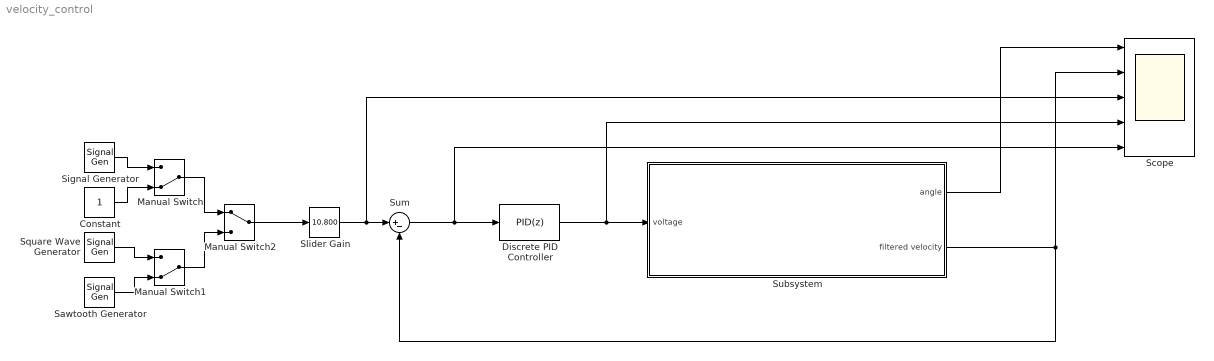
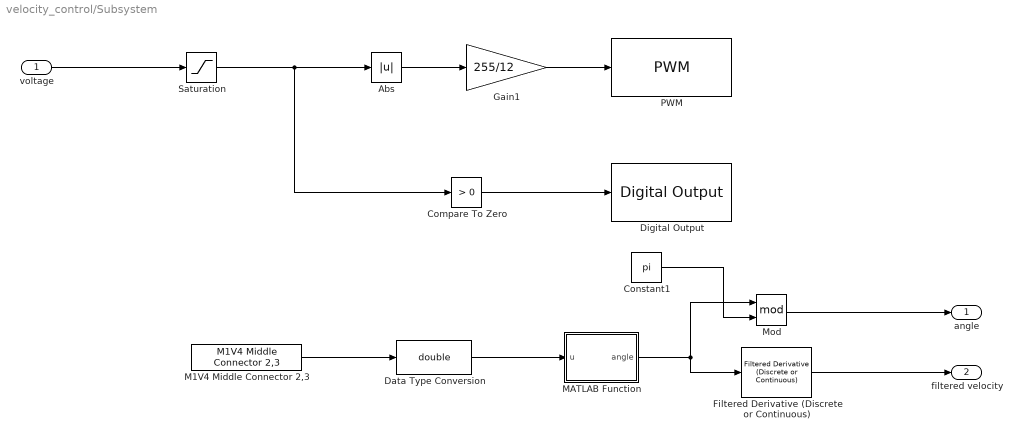
== matlab function velocity_control/Subsystem/MATLAB Function ==
function angle = count2angle(u)

N = 500; Q = 4; G = 6.3;
factor = 2 * pi / (N*Q*G);
angle = u * factor;

/*
 * Academic License - for use in teaching, academic research, and meeting
 * course requirements at degree granting institutions only.  Not for
 * government, commercial, or other organizational use.
 *
 * File: velocity_control.c
 *
 * Code generated for Simulink model 'velocity_control'.
 *
 * Model version                  : 1.7
 * Simulink Coder version         : 9.9 (R2023a) 19-Nov-2022
 * C/C++ source code generated on : Fri Jul 17 13:08:40 2026
 *
 * Target selection: ert.tlc
 * Embedded hardware selection: Atmel->AVR
 * Code generation objectives: Unspecified
 * Validation result: Not run
 */

#include "velocity_control.h"
#include "rtwtypes.h"
#include "rt_nonfinite.h"
#include "velocity_control_private.h"
#include <math.h>
#include "velocity_control_types.h"
#include <float.h>

/* Block signals (default storage) */
B_velocity_control_T velocity_control_B;

/* Block states (default storage) */
DW_velocity_control_T velocity_control_DW;

/* Real-time model */
static RT_MODEL_velocity_control_T velocity_control_M_;
RT_MODEL_velocity_control_T *const velocity_control_M = &velocity_control_M_;
real_T rt_modd_snf(real_T u0, real_T u1)
{
  real_T q;
  real_T y;
  boolean_T yEq;
  y = u0;
  if (u1 == 0.0) {
    if (u0 == 0.0) {
      y = u1;
    }
  } else if (rtIsNaN(u0) || rtIsNaN(u1) || rtIsInf(u0)) {
    y = (rtNaN);
  } else if (u0 == 0.0) {
    y = 0.0 / u1;
  } else if (rtIsInf(u1)) {
    if ((u1 < 0.0) != (u0 < 0.0)) {
      y = u1;
    }
  } else {
    y = fmod(u0, u1);
    yEq = (y == 0.0);
    if ((!yEq) && (u1 > floor(u1))) {
      q = fabs(u0 / u1);
      yEq = !(fabs(q - floor(q + 0.5)) > DBL_EPSILON * q);
    }

    if (yEq) {
      y = u1 * 0.0;
    } else if ((u0 < 0.0) != (u1 < 0.0)) {
      y += u1;
    }
  }

  return y;
}

/* Model step function */
void velocity_control_step(void)
{
  /* local block i/o variables */
  real_T rtb_FilterCoefficient;
  real_T rtb_IntegralGain;
  codertarget_arduinobase_inter_T *obj;
  real_T angle;
  real_T rtb_Integrator_c;
  real_T temp;
  int32_T rtb_M1V4MiddleConnector23_0;

  /* Gain: '<S55>/Minimum sampling to time constant ratio' */
  rtb_Integrator_c = velocity_control_P.FilteredDerivativeDiscreteorC_m *
    velocity_control_B.Probe[0];

  /* MinMax: '<S55>/MinMax' incorporates:
   *  Constant: '<S55>/Time constant'
   */
  if ((!(rtb_Integrator_c >= velocity_control_P.FilteredDerivativeDiscreteorC_a))
      && (!rtIsNaN(velocity_control_P.FilteredDerivativeDiscreteorC_a))) {
    rtb_Integrator_c = velocity_control_P.FilteredDerivativeDiscreteorC_a;
  }

  /* End of MinMax: '<S55>/MinMax' */

  /* MATLABSystem: '<S3>/M1V4 Middle Connector 2,3' */
  /*         %% Define output properties */
  /*  Call: int enc_output(int enc) */
  rtb_M1V4MiddleConnector23_0 = enc_output(0.0);

  /* MATLAB Function: '<S3>/MATLAB Function' incorporates:
   *  DataTypeConversion: '<S3>/Data Type Conversion'
   *  MATLABSystem: '<S3>/M1V4 Middle Connector 2,3'
   */
  angle = (real_T)rtb_M1V4MiddleConnector23_0 * 0.00049866550056980839;

  /* DiscreteIntegrator: '<S59>/Integrator' incorporates:
   *  Constant: '<S53>/Constant'
   */
  if (velocity_control_DW.Integrator_IC_LOADING != 0) {
    velocity_control_DW.Integrator_DSTATE = angle;
    if (velocity_control_DW.Integrator_DSTATE >=
        velocity_control_P.Integrator_UpperSat) {
      velocity_control_DW.Integrator_DSTATE =
        velocity_control_P.Integrator_UpperSat;
    } else if (velocity_control_DW.Integrator_DSTATE <=
               velocity_control_P.Integrator_LowerSat) {
      velocity_control_DW.Integrator_DSTATE =
        velocity_control_P.Integrator_LowerSat;
    }
  }

  if ((velocity_control_P.Constant_Value_h != 0.0) ||
      (velocity_control_DW.Integrator_PrevResetState != 0)) {
    velocity_control_DW.Integrator_DSTATE = angle;
    if (velocity_control_DW.Integrator_DSTATE >=
        velocity_control_P.Integrator_UpperSat) {
      velocity_control_DW.Integrator_DSTATE =
        velocity_control_P.Integrator_UpperSat;
    } else if (velocity_control_DW.Integrator_DSTATE <=
               velocity_control_P.Integrator_LowerSat) {
      velocity_control_DW.Integrator_DSTATE =
        velocity_control_P.Integrator_LowerSat;
    }
  }

  if (velocity_control_DW.Integrator_DSTATE >=
      velocity_control_P.Integrator_UpperSat) {
    velocity_control_DW.Integrator_DSTATE =
      velocity_control_P.Integrator_UpperSat;
  } else if (velocity_control_DW.Integrator_DSTATE <=
             velocity_control_P.Integrator_LowerSat) {
    velocity_control_DW.Integrator_DSTATE =
      velocity_control_P.Integrator_LowerSat;
  }

  /* Saturate: '<S59>/Saturation' incorporates:
   *  DiscreteIntegrator: '<S59>/Integrator'
   */
  if (velocity_control_DW.Integrator_DSTATE >
      velocity_control_P.Saturation_UpperSat) {
    temp = velocity_control_P.Saturation_UpperSat;
  } else if (velocity_control_DW.Integrator_DSTATE <
             velocity_control_P.Saturation_LowerSat) {
    temp = velocity_control_P.Saturation_LowerSat;
  } else {
    temp = velocity_control_DW.Integrator_DSTATE;
  }

  /* Product: '<S53>/1//T' incorporates:
   *  Fcn: '<S55>/Avoid Divide by Zero'
   *  Saturate: '<S59>/Saturation'
   *  Sum: '<S53>/Sum1'
   */
  velocity_control_B.uT = 1.0 / ((real_T)(rtb_Integrator_c == 0.0) *
    2.2204460492503131e-16 + rtb_Integrator_c) * (angle - temp);

  /* Gain: '<S53>/Gain' */
  velocity_control_B.AB = velocity_control_P.FilteredDerivativeDiscreteorC_i *
    velocity_control_B.uT;

  /* Saturate: '<S53>/[A,B]' */
  if (velocity_control_B.AB > velocity_control_P.FilteredDerivativeDiscreteorC_p)
  {
    /* Gain: '<S53>/Gain' incorporates:
     *  Saturate: '<S53>/[A,B]'
     */
    velocity_control_B.AB = velocity_control_P.FilteredDerivativeDiscreteorC_p;
  } else if (velocity_control_B.AB <
             velocity_control_P.FilteredDerivativeDiscreteorCon) {
    /* Gain: '<S53>/Gain' incorporates:
     *  Saturate: '<S53>/[A,B]'
     */
    velocity_control_B.AB = velocity_control_P.FilteredDerivativeDiscreteorCon;
  }

  /* End of Saturate: '<S53>/[A,B]' */
  /* Math: '<S3>/Mod' incorporates:
   *  Constant: '<S3>/Constant1'
   */
  velocity_control_B.Mod = rt_modd_snf(angle, velocity_control_P.Constant1_Value);

  /* SignalGenerator: '<Root>/Square Wave Generator' incorporates:
   *  SignalGenerator: '<Root>/Signal Generator'
   */
  angle = velocity_control_M->Timing.t[0];
  rtb_Integrator_c = velocity_control_P.SquareWaveGenerator_Frequency * angle;

  /* SignalGenerator: '<Root>/Sawtooth Generator' incorporates:
   *  SignalGenerator: '<Root>/Square Wave Generator'
   */
  temp = velocity_control_P.SawtoothGenerator_Frequency * angle;

  /* ManualSwitch: '<Root>/Manual Switch2' incorporates:
   *  ManualSwitch: '<Root>/Manual Switch1'
   *  SignalGenerator: '<Root>/Sawtooth Generator'
   */
  if (velocity_control_P.ManualSwitch2_CurrentSetting == 1) {
    /* ManualSwitch: '<Root>/Manual Switch' incorporates:
     *  Constant: '<Root>/Constant'
     *  SignalGenerator: '<Root>/Signal Generator'
     */
    if (velocity_control_P.ManualSwitch_CurrentSetting == 1) {
      angle = sin(velocity_control_P.SignalGenerator_Frequency * angle) *
        velocity_control_P.SignalGenerator_Amplitude;
    } else {
      angle = velocity_control_P.Constant_Value_c;
    }

    /* End of ManualSwitch: '<Root>/Manual Switch' */
  } else if (velocity_control_P.ManualSwitch1_CurrentSetting == 1) {
    /* SignalGenerator: '<Root>/Square Wave Generator' */
    if (rtb_Integrator_c - floor(rtb_Integrator_c) >= 0.5) {
      /* ManualSwitch: '<Root>/Manual Switch1' incorporates:
       *  SignalGenerator: '<Root>/Square Wave Generator'
       */
      angle = velocity_control_P.SquareWaveGenerator_Amplitude;
    } else {
      /* ManualSwitch: '<Root>/Manual Switch1' incorporates:
       *  SignalGenerator: '<Root>/Square Wave Generator'
       */
      angle = -velocity_control_P.SquareWaveGenerator_Amplitude;
    }
  } else {
    angle = (1.0 - (temp - floor(temp)) * 2.0) *
      velocity_control_P.SawtoothGenerator_Amplitude;
  }

  /* End of ManualSwitch: '<Root>/Manual Switch2' */

  /* Gain: '<S2>/Slider Gain' */
  velocity_control_B.SliderGain = velocity_control_P.SliderGain_gain * angle;

  /* Sum: '<Root>/Sum' */
  velocity_control_B.Sum = velocity_control_B.SliderGain - velocity_control_B.AB;

  /* Gain: '<S38>/Filter Coefficient' incorporates:
   *  DiscreteIntegrator: '<S30>/Filter'
   *  Gain: '<S29>/Derivative Gain'
   *  Sum: '<S30>/SumD'
   */
  rtb_FilterCoefficient = (velocity_control_P.DiscretePIDController_D *
    velocity_control_B.Sum - velocity_control_DW.Filter_DSTATE) *
    velocity_control_P.DiscretePIDController_N;

  /* Sum: '<S44>/Sum' incorporates:
   *  DiscreteIntegrator: '<S35>/Integrator'
   *  Gain: '<S40>/Proportional Gain'
   */
  velocity_control_B.Saturation_n = (velocity_control_P.DiscretePIDController_P *
    velocity_control_B.Sum + velocity_control_DW.Integrator_DSTATE_c) +
    rtb_FilterCoefficient;

  /* Saturate: '<S42>/Saturation' */
  if (velocity_control_B.Saturation_n >
      velocity_control_P.DiscretePIDController_UpperSatu) {
    /* Sum: '<S44>/Sum' incorporates:
     *  Saturate: '<S42>/Saturation'
     */
    velocity_control_B.Saturation_n =
      velocity_control_P.DiscretePIDController_UpperSatu;
  } else if (velocity_control_B.Saturation_n <
             velocity_control_P.DiscretePIDController_LowerSatu) {
    /* Sum: '<S44>/Sum' incorporates:
     *  Saturate: '<S42>/Saturation'
     */
    velocity_control_B.Saturation_n =
      velocity_control_P.DiscretePIDController_LowerSatu;
  }

  /* End of Saturate: '<S42>/Saturation' */
  /* Saturate: '<S3>/Saturation' */
  if (velocity_control_B.Saturation_n > velocity_control_P.Saturation_UpperSat_j)
  {
    angle = velocity_control_P.Saturation_UpperSat_j;
  } else if (velocity_control_B.Saturation_n <
             velocity_control_P.Saturation_LowerSat_h) {
    angle = velocity_control_P.Saturation_LowerSat_h;
  } else {
    angle = velocity_control_B.Saturation_n;
  }

  /* End of Saturate: '<S3>/Saturation' */

  /* MATLABSystem: '<S3>/Digital Output' incorporates:
   *  Constant: '<S52>/Constant'
   *  RelationalOperator: '<S52>/Compare'
   */
  writeDigitalPin(8, (uint8_T)(angle > velocity_control_P.Constant_Value));

  /* MATLABSystem: '<S3>/PWM' */
  obj = &velocity_control_DW.obj_l;
  obj->PWMDriverObj.MW_PWM_HANDLE = MW_PWM_GetHandle(9UL);

  /* Gain: '<S3>/Gain1' incorporates:
   *  Abs: '<S3>/Abs'
   */
  angle = velocity_control_P.Gain1_Gain * fabs(angle);

  /* MATLABSystem: '<S3>/PWM' */
  if (!(angle <= 255.0)) {
    angle = 255.0;
  }

  if (!(angle >= 0.0)) {
    angle = 0.0;
  }

  MW_PWM_SetDutyCycle(velocity_control_DW.obj_l.PWMDriverObj.MW_PWM_HANDLE,
                      angle);

  /* Gain: '<S32>/Integral Gain' */
  rtb_IntegralGain = velocity_control_P.DiscretePIDController_I *
    velocity_control_B.Sum;

  /* Update for DiscreteIntegrator: '<S59>/Integrator' incorporates:
   *  Constant: '<S53>/Constant'
   */
  velocity_control_DW.Integrator_IC_LOADING = 0U;
  velocity_control_DW.Integrator_DSTATE += velocity_control_P.Integrator_gainval
    * velocity_control_B.uT;
  if (velocity_control_DW.Integrator_DSTATE >=
      velocity_control_P.Integrator_UpperSat) {
    velocity_control_DW.Integrator_DSTATE =
      velocity_control_P.Integrator_UpperSat;
  } else if (velocity_control_DW.Integrator_DSTATE <=
             velocity_control_P.Integrator_LowerSat) {
    velocity_control_DW.Integrator_DSTATE =
      velocity_control_P.Integrator_LowerSat;
  }

  if (velocity_control_P.Constant_Value_h > 0.0) {
    velocity_control_DW.Integrator_PrevResetState = 1;
  } else if (velocity_control_P.Constant_Value_h < 0.0) {
    velocity_control_DW.Integrator_PrevResetState = -1;
  } else if (velocity_control_P.Constant_Value_h == 0.0) {
    velocity_control_DW.Integrator_PrevResetState = 0;
  } else {
    velocity_control_DW.Integrator_PrevResetState = 2;
  }

  /* End of Update for DiscreteIntegrator: '<S59>/Integrator' */

  /* Update for DiscreteIntegrator: '<S35>/Integrator' */
  velocity_control_DW.Integrator_DSTATE_c +=
    velocity_control_P.Integrator_gainval_l * rtb_IntegralGain;

  /* Update for DiscreteIntegrator: '<S30>/Filter' */
  velocity_control_DW.Filter_DSTATE += velocity_control_P.Filter_gainval *
    rtb_FilterCoefficient;

  {                                    /* Sample time: [0.0s, 0.0s] */
    extmodeErrorCode_T errorCode = EXTMODE_SUCCESS;
    extmodeSimulationTime_T currentTime = (extmodeSimulationTime_T)
      ((velocity_control_M->Timing.clockTick0 * 1) + 0)
      ;

    /* Trigger External Mode event */
    errorCode = extmodeEvent(0,currentTime);
    if (errorCode != EXTMODE_SUCCESS) {
      /* Code to handle External Mode event errors
         may be added here */
    }
  }

  {                                    /* Sample time: [0.01s, 0.0s] */
    extmodeErrorCode_T errorCode = EXTMODE_SUCCESS;
    extmodeSimulationTime_T currentTime = (extmodeSimulationTime_T)
      ((velocity_control_M->Timing.clockTick1 * 1) + 0)
      ;

    /* Trigger External Mode event */
    errorCode = extmodeEvent(1,currentTime);
    if (errorCode != EXTMODE_SUCCESS) {
      /* Code to handle External Mode event errors
         may be added here */
    }
  }

  /* Update absolute time for base rate */
  /* The "clockTick0" counts the number of times the code of this task has
   * been executed. The absolute time is the multiplication of "clockTick0"
   * and "Timing.stepSize0". Size of "clockTick0" ensures timer will not
   * overflow during the application lifespan selected.
   */
  velocity_control_M->Timing.t[0] =
    ((time_T)(++velocity_control_M->Timing.clockTick0)) *
    velocity_control_M->Timing.stepSize0;

  {
    /* Update absolute timer for sample time: [0.01s, 0.0s] */
    /* The "clockTick1" counts the number of times the code of this task has
     * been executed. The resolution of this integer timer is 0.01, which is the step size
     * of the task. Size of "clockTick1" ensures timer will not overflow during the
     * application lifespan selected.
     */
    velocity_control_M->Timing.clockTick1++;
  }
}
